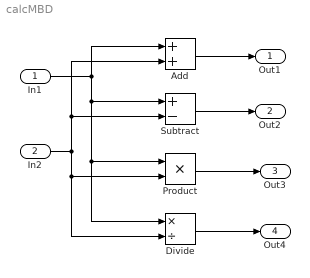
/*
 * File: calcMBD.c
 *
 * Code generated for Simulink model 'calcMBD'.
 *
 * Model version                  : 1.3
 * Simulink Coder version         : 9.0 (R2018b) 24-May-2018
 * C/C++ source code generated on : Sat Feb 26 09:15:29 2022
 *
 * Target selection: ert.tlc
 * Embedded hardware selection: Intel->x86-64 (Windows64)
 * Code generation objectives: Unspecified
 * Validation result: Not run
 */

#include "calcMBD.h"
#include "calcMBD_private.h"

/* External inputs (root inport signals with default storage) */
ExtU_calcMBD_T calcMBD_U;

/* External outputs (root outports fed by signals with default storage) */
ExtY_calcMBD_T calcMBD_Y;

/* Real-time model */
RT_MODEL_calcMBD_T calcMBD_M_;
RT_MODEL_calcMBD_T *const calcMBD_M = &calcMBD_M_;

/* Model step function */
void calcMBD_step(void)
{
  /* Outport: '<Root>/Out1' incorporates:
   *  Inport: '<Root>/In1'
   *  Inport: '<Root>/In2'
   *  Sum: '<Root>/Add'
   */
  calcMBD_Y.Out1 = calcMBD_U.In1 + calcMBD_U.In2;

  /* Outport: '<Root>/Out2' incorporates:
   *  Inport: '<Root>/In1'
   *  Inport: '<Root>/In2'
   *  Sum: '<Root>/Subtract'
   */
  calcMBD_Y.Out2 = calcMBD_U.In1 - calcMBD_U.In2;

  /* Outport: '<Root>/Out3' incorporates:
   *  Inport: '<Root>/In1'
   *  Inport: '<Root>/In2'
   *  Product: '<Root>/Product'
   */
  calcMBD_Y.Out3 = calcMBD_U.In1 * calcMBD_U.In2;

  /* Outport: '<Root>/Out4' incorporates:
   *  Inport: '<Root>/In1'
   *  Inport: '<Root>/In2'
   *  Product: '<Root>/Divide'
   */
  calcMBD_Y.Out4 = calcMBD_U.In1 / calcMBD_U.In2;
}
